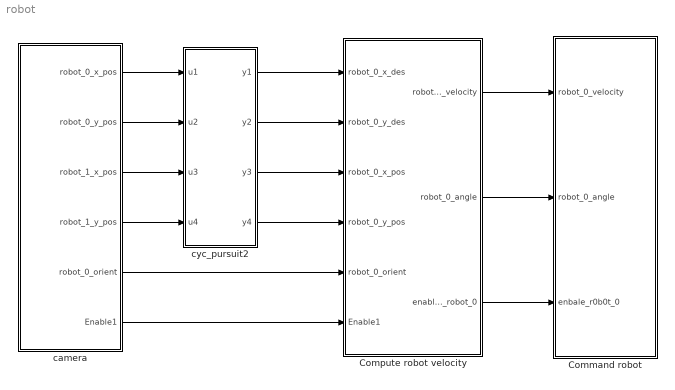
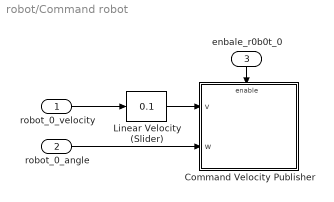
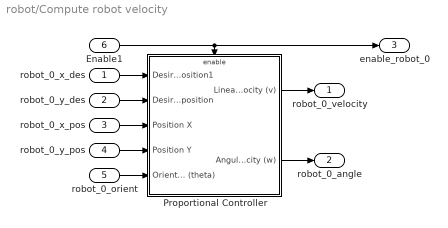
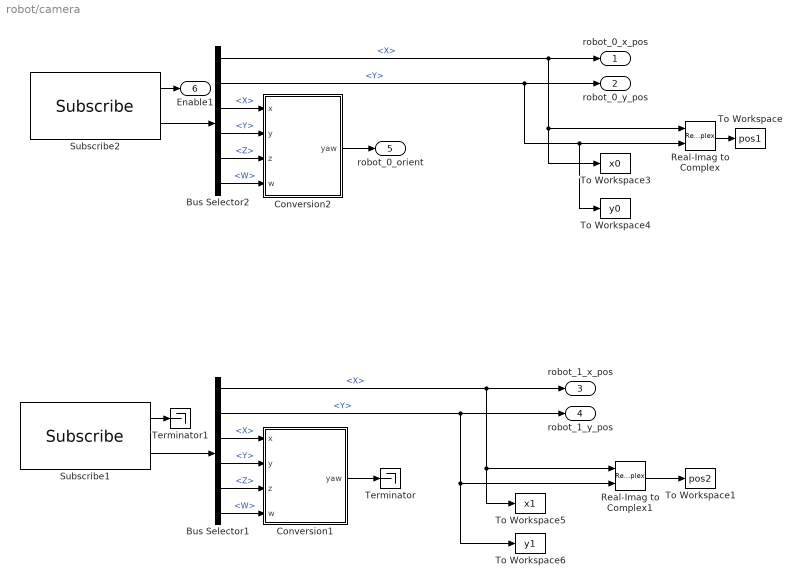
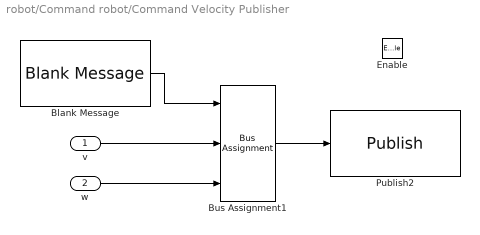
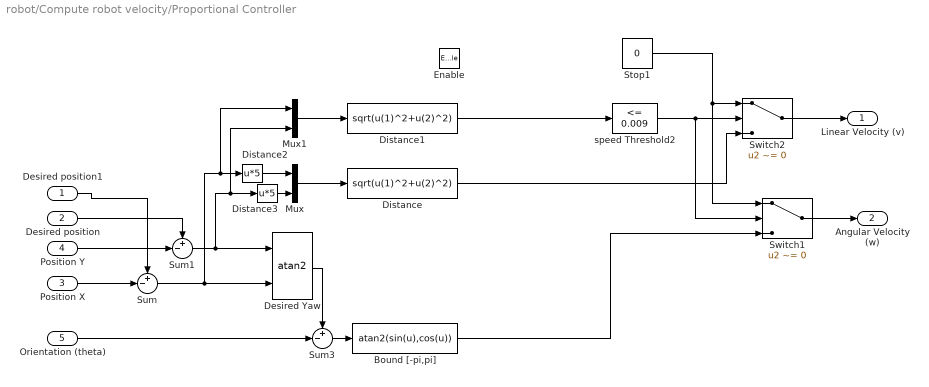
== matlab function robot/cyc_pursuit2 ==
function [y1, y2, y3, y4] = fcn(u1, u2, u3, u4)
%#codegen

y1 = ((1-0.2)*u1+(u3*0.2)-(0.75*0.2));
y2 = ((1-0.2)*u2+(0.2*u4)+(1.2990*0.2));
y3=u1;
y4=u2;




%       y1 = ((1-0.2)*u1+(u3*0.2)+(1.5451*0.2));
%         y2 = ((1-0.2)*u2+(0.2*u4)+(4.7553*0.2));
%         y3 = ((1-0.2)*u3+(u5*0.2)-(4.0451*0.2));
%         y4 = ((1-0.2)*u4+(u6*0.2)+(2.9389*0.2));
%         y5 = ((1-0.2)*u5+(u7*0.2)-(4.0451*0.2));
%         y6 = ((1-0.2)*u6+(u8*0.2)-(2.9389*0.2));
%         y7 = ((1-0.2)*u7+(u9*0.2)+(1.5451*0.2));
%         y8 = ((1-0.2)*u8+(u10*0.2)-(4.7553*0.2));
%         y9 = ((1-0.2)*u9+(u1*0.2)+(5*0.2));
%         y10 = ((1-0.2)*u10+(u2*0.2)+(0*0.2));

== matlab function robot/camera/Conversion1 ==
function yaw  = quat2eul(x,y,z,w)
%#codegen

% Convert the quaternion to a yaw angle (zyx euler angle)
eul = quat2eul([w,x,y,z]);
yaw = eul(1);

end

== matlab function robot/camera/Conversion2 ==
function yaw  = quat2eul(x,y,z,w)
%#codegen

% Convert the quaternion to a yaw angle (zyx euler angle)
eul = quat2eul([w,x,y,z]);
yaw = eul(1);

end

//
// Academic License - for use in teaching, academic research, and meeting
// course requirements at degree granting institutions only.  Not for
// government, commercial, or other organizational use.
//
// File: robot.cpp
//
// Code generated for Simulink model 'robot'.
//
// Model version                  : 1.15
// Simulink Coder version         : 8.11 (R2016b) 25-Aug-2016
// C/C++ source code generated on : Fri Dec 30 17:27:04 2016
//
// Target selection: ert.tlc
// Embedded hardware selection: Generic->Unspecified (assume 32-bit Generic)
// Code generation objectives: Unspecified
// Validation result: Not run
//
#include "robot.h"
#include "robot_private.h"
#define robot_MessageQueueLen          (105)
#define robot_MessageQueueLen_h        (1)

real_T rt_atan2d_snf(real_T u0, real_T u1)
{
  real_T y;
  int32_T u0_0;
  int32_T u1_0;
  if (rtIsNaN(u0) || rtIsNaN(u1)) {
    y = (rtNaN);
  } else if (rtIsInf(u0) && rtIsInf(u1)) {
    if (u0 > 0.0) {
      u0_0 = 1;
    } else {
      u0_0 = -1;
    }

    if (u1 > 0.0) {
      u1_0 = 1;
    } else {
      u1_0 = -1;
    }

    y = atan2((real_T)u0_0, (real_T)u1_0);
  } else if (u1 == 0.0) {
    if (u0 > 0.0) {
      y = RT_PI / 2.0;
    } else if (u0 < 0.0) {
      y = -(RT_PI / 2.0);
    } else {
      y = 0.0;
    }
  } else {
    y = atan2(u0, u1);
  }

  return y;
}

//
// Output and update for atomic system:
//    '<S3>/Conversion1'
//    '<S3>/Conversion2'
//
void robot_Conversion1(real_T rtu_x, real_T rtu_y, real_T rtu_z, real_T rtu_w,
  B_Conversion1_robot_T *localB)
{
  real_T b_y;
  real_T q_idx_0;
  real_T q_idx_1;
  real_T q_idx_2;

  //  Convert the quaternion to a yaw angle (zyx euler angle)
  // MATLAB Function 'camera/Conversion1': '<S11>:1'
  // '<S11>:1:5' eul = quat2eul([w,x,y,z]);
  b_y = 1.0 / sqrt(((rtu_w * rtu_w + rtu_x * rtu_x) + rtu_y * rtu_y) + rtu_z *
                   rtu_z);
  q_idx_0 = rtu_w * b_y;
  q_idx_1 = rtu_x * b_y;
  q_idx_2 = rtu_y * b_y;
  b_y *= rtu_z;

  // '<S11>:1:6' yaw = eul(1);
  localB->yaw = rt_atan2d_snf((q_idx_1 * q_idx_2 + q_idx_0 * b_y) * 2.0,
    ((q_idx_0 * q_idx_0 + q_idx_1 * q_idx_1) - q_idx_2 * q_idx_2) - b_y * b_y);
}

real_T rt_powd_snf(real_T u0, real_T u1)
{
  real_T y;
  real_T tmp;
  real_T tmp_0;
  if (rtIsNaN(u0) || rtIsNaN(u1)) {
    y = (rtNaN);
  } else {
    tmp = fabs(u0);
    tmp_0 = fabs(u1);
    if (rtIsInf(u1)) {
      if (tmp == 1.0) {
        y = (rtNaN);
      } else if (tmp > 1.0) {
        if (u1 > 0.0) {
          y = (rtInf);
        } else {
          y = 0.0;
        }
      } else if (u1 > 0.0) {
        y = 0.0;
      } else {
        y = (rtInf);
      }
    } else if (tmp_0 == 0.0) {
      y = 1.0;
    } else if (tmp_0 == 1.0) {
      if (u1 > 0.0) {
        y = u0;
      } else {
        y = 1.0 / u0;
      }
    } else if (u1 == 2.0) {
      y = u0 * u0;
    } else if ((u1 == 0.5) && (u0 >= 0.0)) {
      y = sqrt(u0);
    } else if ((u0 < 0.0) && (u1 > floor(u1))) {
      y = (rtNaN);
    } else {
      y = pow(u0, u1);
    }
  }

  return y;
}

// Model step function
void robot_0ModelClass::step()
{
  boolean_T varargout_1;
  boolean_T varargout_1_0;

  // Outputs for Atomic SubSystem: '<S3>/Subscribe2'
  // Start for MATLABSystem: '<S14>/SourceBlock' incorporates:
  //   Inport: '<S16>/In1'
  //   MATLABSystem: '<S14>/SourceBlock'

  varargout_1 = Sub_robot_11.getLatestMessage(&robot_B.varargout_2);

  // Outputs for Enabled SubSystem: '<S14>/Enabled Subsystem' incorporates:
  //   EnablePort: '<S16>/Enable'

  if (varargout_1) {
    robot_B.In1 = robot_B.varargout_2;
  }

  // End of Outputs for SubSystem: '<S14>/Enabled Subsystem'
  // End of Outputs for SubSystem: '<S3>/Subscribe2'

  // Outputs for Atomic SubSystem: '<S3>/Subscribe1'
  // Start for MATLABSystem: '<S13>/SourceBlock' incorporates:
  //   Inport: '<S15>/In1'
  //   MATLABSystem: '<S13>/SourceBlock'

  varargout_1_0 = Sub_robot_10.getLatestMessage(&robot_B.varargout_2);

  // Outputs for Enabled SubSystem: '<S13>/Enabled Subsystem' incorporates:
  //   EnablePort: '<S15>/Enable'

  if (varargout_1_0) {
    robot_B.In1_d = robot_B.varargout_2;
  }

  // End of Start for MATLABSystem: '<S13>/SourceBlock'
  // End of Outputs for SubSystem: '<S13>/Enabled Subsystem'
  // End of Outputs for SubSystem: '<S3>/Subscribe1'

  // MATLAB Function: '<S3>/Conversion2'
  // MATLAB Function 'cyc_pursuit2': '<S4>:1'
  // '<S4>:1:4' y1 = ((1-0.2)*u1+(u3*0.2)-(1.2135*0.2));
  // '<S4>:1:5' y2 = ((1-0.2)*u2+(0.2*u4)-(0.8817*0.2));
  // '<S4>:1:6' y3=u1;
  // '<S4>:1:7' y4=u2;
  robot_Conversion1(robot_B.In1.Pose.Orientation.X,
                    robot_B.In1.Pose.Orientation.Y,
                    robot_B.In1.Pose.Orientation.Z,
                    robot_B.In1.Pose.Orientation.W, &robot_B.sf_Conversion2);

  // Outputs for Enabled SubSystem: '<S1>/Command Velocity Publisher' incorporates:
  //   EnablePort: '<S5>/Enable'

  // Outputs for Enabled SubSystem: '<S2>/Proportional Controller' incorporates:
  //   EnablePort: '<S9>/Enable'

  // Outputs for Atomic SubSystem: '<S3>/Subscribe2'
  // Start for MATLABSystem: '<S14>/SourceBlock' incorporates:
  //   MATLABSystem: '<S14>/SourceBlock'

  if (varargout_1) {
    // Sum: '<S9>/Sum1' incorporates:
    //   MATLAB Function: '<Root>/cyc_pursuit2'
    //   SignalConversion: '<S3>/SigConversion_InsertedFor_Bus Selector1_at_outport_1'
    //   SignalConversion: '<S3>/SigConversion_InsertedFor_Bus Selector2_at_outport_1'

    robot_B.Sum1 = ((0.8 * robot_B.In1.Pose.Position.Y + 0.2 *
                     robot_B.In1_d.Pose.Position.Y) - 0.17634000000000002) -
      robot_B.In1.Pose.Position.Y;

    // Sum: '<S9>/Sum' incorporates:
    //   MATLAB Function: '<Root>/cyc_pursuit2'
    //   SignalConversion: '<S3>/SigConversion_InsertedFor_Bus Selector1_at_outport_0'
    //   SignalConversion: '<S3>/SigConversion_InsertedFor_Bus Selector2_at_outport_0'

    robot_B.Sum = ((0.8 * robot_B.In1.Pose.Position.X +
                    robot_B.In1_d.Pose.Position.X * 0.2) - 0.24270000000000003)
      - robot_B.In1.Pose.Position.X;

    // Fcn: '<S9>/Distance1'
    robot_B.Sum3 = rt_powd_snf(robot_B.Sum, 2.0) + rt_powd_snf(robot_B.Sum1, 2.0);
    if (robot_B.Sum3 < 0.0) {
      robot_B.Sum3 = -sqrt(-robot_B.Sum3);
    } else {
      robot_B.Sum3 = sqrt(robot_B.Sum3);
    }

    // End of Fcn: '<S9>/Distance1'

    // Switch: '<S9>/Switch1' incorporates:
    //   Constant: '<S10>/Constant'
    //   Constant: '<S9>/Stop1'
    //   Fcn: '<S9>/Bound [-pi,pi]'
    //   RelationalOperator: '<S10>/Compare'
    //   Switch: '<S9>/Switch2'

    if (robot_B.Sum3 <= robot_P.speedThreshold2_const) {
      robot_B.Switch1 = robot_P.Stop1_Value;
      robot_B.Sum1 = robot_P.Stop1_Value;
    } else {
      // Sum: '<S9>/Sum3' incorporates:
      //   Trigonometry: '<S9>/Desired Yaw'

      robot_B.Sum3 = rt_atan2d_snf(robot_B.Sum1, robot_B.Sum) -
        robot_B.sf_Conversion2.yaw;
      robot_B.Switch1 = rt_atan2d_snf(sin(robot_B.Sum3), cos(robot_B.Sum3));

      // Fcn: '<S9>/Distance3' incorporates:
      //   Fcn: '<S9>/Bound [-pi,pi]'

      robot_B.Sum1 *= 5.0;

      // Fcn: '<S9>/Distance2'
      robot_B.Sum *= 5.0;

      // Fcn: '<S9>/Distance'
      robot_B.Sum3 = rt_powd_snf(robot_B.Sum, 2.0) + rt_powd_snf(robot_B.Sum1,
        2.0);
      if (robot_B.Sum3 < 0.0) {
        robot_B.Sum1 = -sqrt(-robot_B.Sum3);
      } else {
        robot_B.Sum1 = sqrt(robot_B.Sum3);
      }

      // End of Fcn: '<S9>/Distance'
    }

    // End of Switch: '<S9>/Switch1'

    // BusAssignment: '<S5>/Bus Assignment1' incorporates:
    //   Constant: '<S7>/Constant'
    //   Gain: '<S6>/Slider Gain'

    robot_B.BusAssignment1 = robot_P.Constant_Value_p;
    robot_B.BusAssignment1.Linear.X = robot_P.LinearVelocitySlider_gain *
      robot_B.Sum1;
    robot_B.BusAssignment1.Angular.Z = robot_B.Switch1;

    // Outputs for Atomic SubSystem: '<S5>/Publish2'
    // Start for MATLABSystem: '<S8>/SinkBlock' incorporates:
    //   MATLABSystem: '<S8>/SinkBlock'

    Pub_robot_75.publish(&robot_B.BusAssignment1);

    // End of Outputs for SubSystem: '<S5>/Publish2'
  }

  // End of Outputs for SubSystem: '<S3>/Subscribe2'
  // End of Outputs for SubSystem: '<S2>/Proportional Controller'
  // End of Outputs for SubSystem: '<S1>/Command Velocity Publisher'

  // MATLAB Function: '<S3>/Conversion1'
  robot_Conversion1(robot_B.In1_d.Pose.Orientation.X,
                    robot_B.In1_d.Pose.Orientation.Y,
                    robot_B.In1_d.Pose.Orientation.Z,
                    robot_B.In1_d.Pose.Orientation.W, &robot_B.sf_Conversion1);
}
